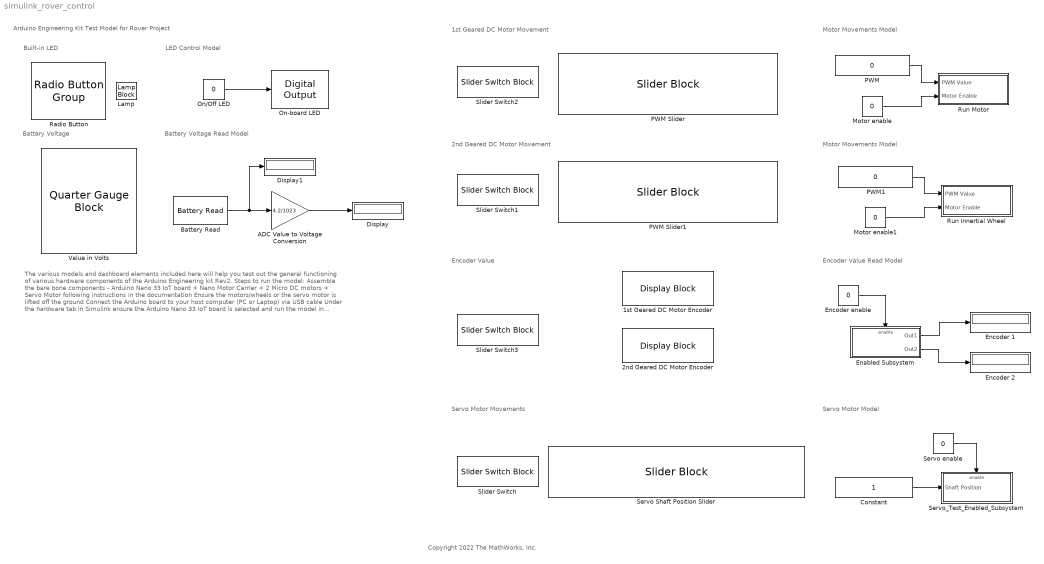
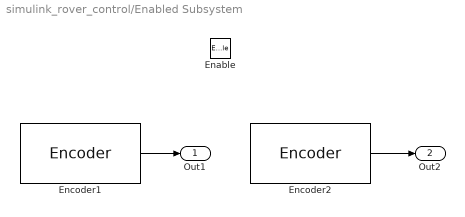
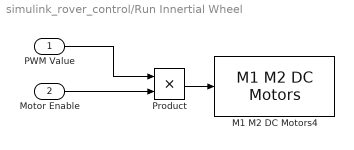
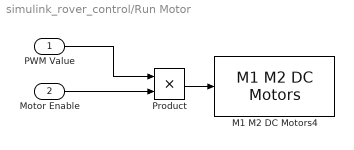
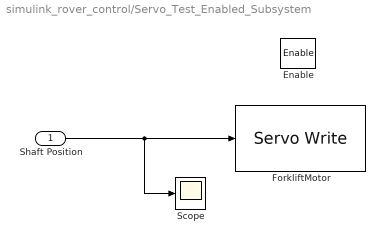
/*
 * Academic License - for use in teaching, academic research, and meeting
 * course requirements at degree granting institutions only.  Not for
 * government, commercial, or other organizational use.
 *
 * File: simulink_rover_control.c
 *
 * Code generated for Simulink model 'simulink_rover_control'.
 *
 * Model version                  : 1.29
 * Simulink Coder version         : 9.8 (R2022b) 13-May-2022
 * C/C++ source code generated on : Sat Feb 25 16:40:47 2023
 *
 * Target selection: ert.tlc
 * Embedded hardware selection: ARM Compatible->ARM Cortex
 * Code generation objectives: Unspecified
 * Validation result: Not run
 */

#include "simulink_rover_control.h"
#include "simulink_rover_control_types.h"
#include "rtwtypes.h"
#include <string.h>
#include "simulink_rover_control_private.h"
#include <stddef.h>
#include <math.h>

/* Block signals (default storage) */
B_simulink_rover_control_T simulink_rover_control_B;

/* Block states (default storage) */
DW_simulink_rover_control_T simulink_rover_control_DW;

/* Real-time model */
static RT_MODEL_simulink_rover_contr_T simulink_rover_control_M_;
RT_MODEL_simulink_rover_contr_T *const simulink_rover_control_M =
  &simulink_rover_control_M_;

/* Forward declaration for local functions */
static void mkrmotorcarrier_ServoMotor_Serv(const
  motorcarrier_blocks_mkrmo_hvv_T *obj, int32_T value);
static void simulink__SystemCore_setup_hvv2(motorcarrier_blocks_mkrmo_hvv_T *obj);
static void simulink_rover_SystemCore_setup(motorcarrier_blocks_mkrmoto_h_T *obj);
static void simulink_rov_SystemCore_setup_h(motorcarrier_blocks_mkrmoto_h_T *obj);
static void simulink_r_SystemCore_setup_hvv(motorcarrier_blocks_mkrmot_hv_T *obj);
static void simulink_ro_SystemCore_setup_hv(motorcarrier_blocks_mkrmot_hv_T *obj);
void mul_wide_s32(int32_T in0, int32_T in1, uint32_T *ptrOutBitsHi, uint32_T
                  *ptrOutBitsLo)
{
  uint32_T absIn0;
  uint32_T absIn1;
  uint32_T in0Hi;
  uint32_T in0Lo;
  uint32_T in1Hi;
  uint32_T productHiLo;
  uint32_T productLoHi;
  absIn0 = in0 < 0 ? ~(uint32_T)in0 + 1U : (uint32_T)in0;
  absIn1 = in1 < 0 ? ~(uint32_T)in1 + 1U : (uint32_T)in1;
  in0Hi = absIn0 >> 16U;
  in0Lo = absIn0 & 65535U;
  in1Hi = absIn1 >> 16U;
  absIn0 = absIn1 & 65535U;
  productHiLo = in0Hi * absIn0;
  productLoHi = in0Lo * in1Hi;
  absIn0 *= in0Lo;
  absIn1 = 0U;
  in0Lo = (productLoHi << /*MW:OvBitwiseOk*/ 16U) + /*MW:OvCarryOk*/ absIn0;
  if (in0Lo < absIn0) {
    absIn1 = 1U;
  }

  absIn0 = in0Lo;
  in0Lo += /*MW:OvCarryOk*/ productHiLo << /*MW:OvBitwiseOk*/ 16U;
  if (in0Lo < absIn0) {
    absIn1++;
  }

  absIn0 = (((productLoHi >> 16U) + (productHiLo >> 16U)) + in0Hi * in1Hi) +
    absIn1;
  if ((in0 != 0) && ((in1 != 0) && ((in0 > 0) != (in1 > 0)))) {
    absIn0 = ~absIn0;
    in0Lo = ~in0Lo;
    in0Lo++;
    if (in0Lo == 0U) {
      absIn0++;
    }
  }

  *ptrOutBitsHi = absIn0;
  *ptrOutBitsLo = in0Lo;
}

int32_T mul_s32_sat(int32_T a, int32_T b)
{
  int32_T result;
  uint32_T u32_chi;
  uint32_T u32_clo;
  mul_wide_s32(a, b, &u32_chi, &u32_clo);
  if (((int32_T)u32_chi > 0) || ((u32_chi == 0U) && (u32_clo >= 2147483648U))) {
    result = MAX_int32_T;
  } else if (((int32_T)u32_chi < -1) || (((int32_T)u32_chi == -1) && (u32_clo <
               2147483648U))) {
    result = MIN_int32_T;
  } else {
    result = (int32_T)u32_clo;
  }

  return result;
}

real_T rt_roundd_snf(real_T u)
{
  real_T y;
  if (fabs(u) < 4.503599627370496E+15) {
    if (u >= 0.5) {
      y = floor(u + 0.5);
    } else if (u > -0.5) {
      y = u * 0.0;
    } else {
      y = ceil(u - 0.5);
    }
  } else {
    y = u;
  }

  return y;
}

static void mkrmotorcarrier_ServoMotor_Serv(const
  motorcarrier_blocks_mkrmo_hvv_T *obj, int32_T value)
{
  int32_T x;
  int32_T z;
  uint32_T q;
  uint32_T y;
  uint8_T SwappedDataBytes[6];
  uint8_T data_uint8[4];
  x = mul_s32_sat(value, 21);
  if (x >= 0) {
    y = (uint32_T)x;
  } else if (x == MIN_int32_T) {
    y = 2147483648U;
  } else {
    y = (uint32_T)-x;
  }

  q = y / 180U;
  y -= q * 180U;
  if ((y > 0U) && (y >= 90U)) {
    q++;
  }

  z = (int32_T)q;
  if (x < 0) {
    z = -(int32_T)q;
  }

  x = z + 7;
  memcpy((void *)&data_uint8[0], (void *)&x, (size_t)4 * sizeof(uint8_T));
  simulink_rover_control_B.final_data_to_write_m[0] = 3U;
  simulink_rover_control_B.final_data_to_write_m[1] = 2U;
  simulink_rover_control_B.final_data_to_write_m[2] = data_uint8[0];
  simulink_rover_control_B.final_data_to_write_m[3] = data_uint8[1];
  simulink_rover_control_B.final_data_to_write_m[4] = data_uint8[2];
  simulink_rover_control_B.final_data_to_write_m[5] = data_uint8[3];
  memcpy((void *)&SwappedDataBytes[0], (void *)
         &simulink_rover_control_B.final_data_to_write_m[0], (size_t)6 * sizeof
         (uint8_T));
  MW_I2C_MasterWrite(obj->i2cObj.I2CDriverObj.MW_I2C_HANDLE, 102U,
                     &SwappedDataBytes[0], 6U, false, false);
}

static void simulink__SystemCore_setup_hvv2(motorcarrier_blocks_mkrmo_hvv_T *obj)
{
  MW_I2C_Mode_Type modename;
  uint32_T i2cname;
  f_codertarget_arduinobase_int_T *obj_0;
  int32_T x;
  uint32_T varargin_1;
  uint8_T SwappedDataBytes[6];
  uint8_T final_data_to_write[6];
  uint8_T data_uint8[4];
  obj->isSetupComplete = false;
  obj->isInitialized = 1;
  obj_0 = &obj->i2cObj;
  modename = MW_I2C_MASTER;
  i2cname = 0;
  obj->i2cObj.I2CDriverObj.MW_I2C_HANDLE = MW_I2C_Open(i2cname, modename);
  obj->i2cObj.BusSpeed = 100000U;
  varargin_1 = obj->i2cObj.BusSpeed;
  MW_I2C_SetBusSpeed(obj_0->I2CDriverObj.MW_I2C_HANDLE, varargin_1);
  x = 100;
  memcpy((void *)&data_uint8[0], (void *)&x, (size_t)4 * sizeof(uint8_T));
  final_data_to_write[0] = 4U;
  final_data_to_write[1] = 2U;
  final_data_to_write[2] = data_uint8[0];
  final_data_to_write[3] = data_uint8[1];
  final_data_to_write[4] = data_uint8[2];
  final_data_to_write[5] = data_uint8[3];
  memcpy((void *)&SwappedDataBytes[0], (void *)&final_data_to_write[0], (size_t)
         6 * sizeof(uint8_T));
  MW_I2C_MasterWrite(obj->i2cObj.I2CDriverObj.MW_I2C_HANDLE, 102U,
                     &SwappedDataBytes[0], 6U, false, false);
  obj->isSetupComplete = true;
}

static void simulink_rover_SystemCore_setup(motorcarrier_blocks_mkrmoto_h_T *obj)
{
  MW_I2C_Mode_Type modename;
  uint32_T i2cname;
  f_codertarget_arduinobase_int_T *obj_0;
  int32_T x;
  uint32_T varargin_1;
  uint8_T SwappedDataBytes[6];
  uint8_T final_data_to_write[6];
  uint8_T data_uint8[4];
  obj->isSetupComplete = false;
  obj->isInitialized = 1;
  obj_0 = &obj->i2cObj;
  modename = MW_I2C_MASTER;
  i2cname = 0;
  obj->i2cObj.I2CDriverObj.MW_I2C_HANDLE = MW_I2C_Open(i2cname, modename);
  obj->i2cObj.BusSpeed = 100000U;
  varargin_1 = obj->i2cObj.BusSpeed;
  MW_I2C_SetBusSpeed(obj_0->I2CDriverObj.MW_I2C_HANDLE, varargin_1);
  x = 0;
  memcpy((void *)&data_uint8[0], (void *)&x, (size_t)4 * sizeof(uint8_T));
  final_data_to_write[0] = 8U;
  final_data_to_write[1] = 0U;
  final_data_to_write[2] = data_uint8[0];
  final_data_to_write[3] = data_uint8[1];
  final_data_to_write[4] = data_uint8[2];
  final_data_to_write[5] = data_uint8[3];
  memcpy((void *)&SwappedDataBytes[0], (void *)&final_data_to_write[0], (size_t)
         6 * sizeof(uint8_T));
  MW_I2C_MasterWrite(obj->i2cObj.I2CDriverObj.MW_I2C_HANDLE, 102U,
                     &SwappedDataBytes[0], 6U, false, false);
  obj->isSetupComplete = true;
}

static void simulink_rov_SystemCore_setup_h(motorcarrier_blocks_mkrmoto_h_T *obj)
{
  MW_I2C_Mode_Type modename;
  uint32_T i2cname;
  f_codertarget_arduinobase_int_T *obj_0;
  int32_T x;
  uint32_T varargin_1;
  uint8_T SwappedDataBytes[6];
  uint8_T final_data_to_write[6];
  uint8_T data_uint8[4];
  obj->isSetupComplete = false;
  obj->isInitialized = 1;
  obj_0 = &obj->i2cObj;
  modename = MW_I2C_MASTER;
  i2cname = 0;
  obj->i2cObj.I2CDriverObj.MW_I2C_HANDLE = MW_I2C_Open(i2cname, modename);
  obj->i2cObj.BusSpeed = 100000U;
  varargin_1 = obj->i2cObj.BusSpeed;
  MW_I2C_SetBusSpeed(obj_0->I2CDriverObj.MW_I2C_HANDLE, varargin_1);
  x = 0;
  memcpy((void *)&data_uint8[0], (void *)&x, (size_t)4 * sizeof(uint8_T));
  final_data_to_write[0] = 8U;
  final_data_to_write[1] = 1U;
  final_data_to_write[2] = data_uint8[0];
  final_data_to_write[3] = data_uint8[1];
  final_data_to_write[4] = data_uint8[2];
  final_data_to_write[5] = data_uint8[3];
  memcpy((void *)&SwappedDataBytes[0], (void *)&final_data_to_write[0], (size_t)
         6 * sizeof(uint8_T));
  MW_I2C_MasterWrite(obj->i2cObj.I2CDriverObj.MW_I2C_HANDLE, 102U,
                     &SwappedDataBytes[0], 6U, false, false);
  obj->isSetupComplete = true;
}

static void simulink_r_SystemCore_setup_hvv(motorcarrier_blocks_mkrmot_hv_T *obj)
{
  MW_I2C_Mode_Type modename;
  uint32_T i2cname;
  f_codertarget_arduinobase_int_T *obj_0;
  int32_T x;
  uint32_T varargin_1;
  uint8_T SwappedDataBytes[6];
  uint8_T final_data_to_write[6];
  uint8_T data_uint8[4];
  obj->isSetupComplete = false;
  obj->isInitialized = 1;
  obj_0 = &obj->i2cObj;
  modename = MW_I2C_MASTER;
  i2cname = 0;
  obj->i2cObj.I2CDriverObj.MW_I2C_HANDLE = MW_I2C_Open(i2cname, modename);
  obj->i2cObj.BusSpeed = 100000U;
  varargin_1 = obj->i2cObj.BusSpeed;
  MW_I2C_SetBusSpeed(obj_0->I2CDriverObj.MW_I2C_HANDLE, varargin_1);
  x = 100;
  memcpy((void *)&data_uint8[0], (void *)&x, (size_t)4 * sizeof(uint8_T));
  final_data_to_write[0] = 6U;
  final_data_to_write[1] = 0U;
  final_data_to_write[2] = data_uint8[0];
  final_data_to_write[3] = data_uint8[1];
  final_data_to_write[4] = data_uint8[2];
  final_data_to_write[5] = data_uint8[3];
  memcpy((void *)&SwappedDataBytes[0], (void *)&final_data_to_write[0], (size_t)
         6 * sizeof(uint8_T));
  MW_I2C_MasterWrite(obj->i2cObj.I2CDriverObj.MW_I2C_HANDLE, 102U,
                     &SwappedDataBytes[0], 6U, false, false);
  obj->isSetupComplete = true;
}

static void simulink_ro_SystemCore_setup_hv(motorcarrier_blocks_mkrmot_hv_T *obj)
{
  MW_I2C_Mode_Type modename;
  uint32_T i2cname;
  f_codertarget_arduinobase_int_T *obj_0;
  int32_T x;
  uint32_T varargin_1;
  uint8_T SwappedDataBytes[6];
  uint8_T final_data_to_write[6];
  uint8_T data_uint8[4];
  obj->isSetupComplete = false;
  obj->isInitialized = 1;
  obj_0 = &obj->i2cObj;
  modename = MW_I2C_MASTER;
  i2cname = 0;
  obj->i2cObj.I2CDriverObj.MW_I2C_HANDLE = MW_I2C_Open(i2cname, modename);
  obj->i2cObj.BusSpeed = 100000U;
  varargin_1 = obj->i2cObj.BusSpeed;
  MW_I2C_SetBusSpeed(obj_0->I2CDriverObj.MW_I2C_HANDLE, varargin_1);
  x = 100;
  memcpy((void *)&data_uint8[0], (void *)&x, (size_t)4 * sizeof(uint8_T));
  final_data_to_write[0] = 6U;
  final_data_to_write[1] = 1U;
  final_data_to_write[2] = data_uint8[0];
  final_data_to_write[3] = data_uint8[1];
  final_data_to_write[4] = data_uint8[2];
  final_data_to_write[5] = data_uint8[3];
  memcpy((void *)&SwappedDataBytes[0], (void *)&final_data_to_write[0], (size_t)
         6 * sizeof(uint8_T));
  MW_I2C_MasterWrite(obj->i2cObj.I2CDriverObj.MW_I2C_HANDLE, 102U,
                     &SwappedDataBytes[0], 6U, false, false);
  obj->isSetupComplete = true;
}

/* Model step function */
void simulink_rover_control_step(void)
{
  f_codertarget_arduinobase_int_T *obj;
  int32_T In;
  uint32_T out;
  uint8_T out_raw[5];
  uint8_T output_raw[5];
  uint8_T data_uint8[4];
  uint8_T SwappedDataBytes[2];
  uint8_T final_data_to_write[2];
  uint8_T tmp;

  /* Reset subsysRan breadcrumbs */
  srClearBC(simulink_rover_control_DW.EnabledSubsystem_SubsysRanBC);

  /* Reset subsysRan breadcrumbs */
  srClearBC(simulink_rover_control_DW.Servo_Test_Enabled_Subsystem_Su);

  /* MATLABSystem: '<Root>/Battery Read' */
  if (simulink_rover_control_DW.obj.SampleTime !=
      simulink_rover_control_P.BatteryRead_SampleTime) {
    simulink_rover_control_DW.obj.SampleTime =
      simulink_rover_control_P.BatteryRead_SampleTime;
  }

  obj = &simulink_rover_control_DW.obj.i2cObj;
  final_data_to_write[0] = 13U;
  final_data_to_write[1] = 0U;
  memcpy((void *)&SwappedDataBytes[0], (void *)&final_data_to_write[0], (size_t)
         2 * sizeof(uint8_T));
  MW_I2C_MasterWrite(obj->I2CDriverObj.MW_I2C_HANDLE, 102U, &SwappedDataBytes[0],
                     2U, false, false);
  obj = &simulink_rover_control_DW.obj.i2cObj;
  MW_I2C_MasterRead(obj->I2CDriverObj.MW_I2C_HANDLE, 102U, &output_raw[0], 5U,
                    false, false);
  memcpy((void *)&out_raw[0], (void *)&output_raw[0], (size_t)5 * sizeof(uint8_T));
  memcpy((void *)&out, (void *)&out_raw[1], (size_t)1 * sizeof(uint32_T));
  if (out > 65535U) {
    out = 65535U;
  }

  /* MATLABSystem: '<Root>/Battery Read' */
  simulink_rover_control_B.BatteryRead = (uint16_T)out;

  /* Gain: '<Root>/ADC Value to Voltage Conversion' */
  simulink_rover_control_B.ADCValuetoVoltageConversion = (uint32_T)
    simulink_rover_control_P.ADCValuetoVoltageConversion_Gai *
    simulink_rover_control_B.BatteryRead;

  /* Constant: '<Root>/Constant' */
  simulink_rover_control_B.Constant = simulink_rover_control_P.Constant_Value;

  /* Outputs for Enabled SubSystem: '<Root>/Servo_Test_Enabled_Subsystem' incorporates:
   *  EnablePort: '<S4>/Enable'
   */
  /* Constant: '<Root>/Servo enable' */
  if (simulink_rover_control_P.Servoenable_Value > 0.0) {
    /* MATLABSystem: '<S4>/ForkliftMotor' */
    simulink_rover_control_B.Product = rt_roundd_snf
      (simulink_rover_control_B.Constant);
    if (simulink_rover_control_B.Product < 2.147483648E+9) {
      if (simulink_rover_control_B.Product >= -2.147483648E+9) {
        In = (int32_T)simulink_rover_control_B.Product;
      } else {
        In = MIN_int32_T;
      }
    } else {
      In = MAX_int32_T;
    }

    mkrmotorcarrier_ServoMotor_Serv(&simulink_rover_control_DW.obj_f, In);

    /* End of MATLABSystem: '<S4>/ForkliftMotor' */
    srUpdateBC(simulink_rover_control_DW.Servo_Test_Enabled_Subsystem_Su);
  }

  /* End of Constant: '<Root>/Servo enable' */
  /* End of Outputs for SubSystem: '<Root>/Servo_Test_Enabled_Subsystem' */

  /* Outputs for Enabled SubSystem: '<Root>/Enabled Subsystem' incorporates:
   *  EnablePort: '<S1>/Enable'
   */
  /* Constant: '<Root>/Encoder enable' */
  if (simulink_rover_control_P.Encoderenable_Value > 0.0) {
    /* MATLABSystem: '<S1>/Encoder1' */
    final_data_to_write[0] = 7U;
    final_data_to_write[1] = 0U;
    obj = &simulink_rover_control_DW.obj_n.i2cObj;
    memcpy((void *)&SwappedDataBytes[0], (void *)&final_data_to_write[0],
           (size_t)2 * sizeof(uint8_T));
    MW_I2C_MasterWrite(obj->I2CDriverObj.MW_I2C_HANDLE, 102U, &SwappedDataBytes
                       [0], 2U, false, false);
    obj = &simulink_rover_control_DW.obj_n.i2cObj;
    MW_I2C_MasterRead(obj->I2CDriverObj.MW_I2C_HANDLE, 102U, &output_raw[0], 5U,
                      false, false);
    memcpy((void *)&out_raw[0], (void *)&output_raw[0], (size_t)5 * sizeof
           (uint8_T));
    memcpy((void *)&simulink_rover_control_B.Encoder1, (void *)&out_raw[1],
           (size_t)1 * sizeof(int32_T));

    /* MATLABSystem: '<S1>/Encoder2' */
    final_data_to_write[0] = 7U;
    final_data_to_write[1] = 1U;
    obj = &simulink_rover_control_DW.obj_l.i2cObj;
    memcpy((void *)&SwappedDataBytes[0], (void *)&final_data_to_write[0],
           (size_t)2 * sizeof(uint8_T));
    MW_I2C_MasterWrite(obj->I2CDriverObj.MW_I2C_HANDLE, 102U, &SwappedDataBytes
                       [0], 2U, false, false);
    obj = &simulink_rover_control_DW.obj_l.i2cObj;
    MW_I2C_MasterRead(obj->I2CDriverObj.MW_I2C_HANDLE, 102U, &output_raw[0], 5U,
                      false, false);
    memcpy((void *)&out_raw[0], (void *)&output_raw[0], (size_t)5 * sizeof
           (uint8_T));
    memcpy((void *)&simulink_rover_control_B.Encoder2, (void *)&out_raw[1],
           (size_t)1 * sizeof(int32_T));
    srUpdateBC(simulink_rover_control_DW.EnabledSubsystem_SubsysRanBC);
  }

  /* End of Constant: '<Root>/Encoder enable' */
  /* End of Outputs for SubSystem: '<Root>/Enabled Subsystem' */
  /* Outputs for Atomic SubSystem: '<Root>/Run Motor' */
  /* Product: '<S3>/Product' incorporates:
   *  Constant: '<Root>/Motor enable'
   *  Constant: '<Root>/PWM'
   */
  simulink_rover_control_B.Product = simulink_rover_control_P.PWM_Value *
    simulink_rover_control_P.Motorenable_Value;

  /* MATLABSystem: '<S3>/M1 M2 DC Motors4' */
  if (simulink_rover_control_B.Product > 100.0) {
    In = 100;
  } else if (simulink_rover_control_B.Product < -100.0) {
    In = -100;
  } else {
    simulink_rover_control_B.Product = rt_roundd_snf
      (simulink_rover_control_B.Product);
    if (simulink_rover_control_B.Product < 2.147483648E+9) {
      In = (int32_T)simulink_rover_control_B.Product;
    } else {
      In = MAX_int32_T;
    }
  }

  memcpy((void *)&data_uint8[0], (void *)&In, (size_t)4 * sizeof(uint8_T));
  simulink_rover_control_B.final_data_to_write[0] = 5U;
  simulink_rover_control_B.final_data_to_write[1] = 0U;
  simulink_rover_control_B.final_data_to_write[2] = data_uint8[0];
  simulink_rover_control_B.final_data_to_write[3] = data_uint8[1];
  simulink_rover_control_B.final_data_to_write[4] = data_uint8[2];
  simulink_rover_control_B.final_data_to_write[5] = data_uint8[3];
  obj = &simulink_rover_control_DW.obj_b.i2cObj;
  memcpy((void *)&simulink_rover_control_B.SwappedDataBytes[0], (void *)
         &simulink_rover_control_B.final_data_to_write[0], (size_t)6 * sizeof
         (uint8_T));
  MW_I2C_MasterWrite(obj->I2CDriverObj.MW_I2C_HANDLE, 102U,
                     &simulink_rover_control_B.SwappedDataBytes[0], 6U, false,
                     false);

  /* End of MATLABSystem: '<S3>/M1 M2 DC Motors4' */
  /* End of Outputs for SubSystem: '<Root>/Run Motor' */

  /* Outputs for Atomic SubSystem: '<Root>/Run Innertial Wheel' */
  /* Product: '<S2>/Product' incorporates:
   *  Constant: '<Root>/Motor enable1'
   *  Constant: '<Root>/PWM1'
   */
  simulink_rover_control_B.Product = simulink_rover_control_P.PWM1_Value *
    simulink_rover_control_P.Motorenable1_Value;

  /* MATLABSystem: '<S2>/M1 M2 DC Motors4' */
  if (simulink_rover_control_B.Product > 100.0) {
    In = 100;
  } else if (simulink_rover_control_B.Product < -100.0) {
    In = -100;
  } else {
    simulink_rover_control_B.Product = rt_roundd_snf
      (simulink_rover_control_B.Product);
    if (simulink_rover_control_B.Product < 2.147483648E+9) {
      In = (int32_T)simulink_rover_control_B.Product;
    } else {
      In = MAX_int32_T;
    }
  }

  memcpy((void *)&data_uint8[0], (void *)&In, (size_t)4 * sizeof(uint8_T));
  simulink_rover_control_B.final_data_to_write[0] = 5U;
  simulink_rover_control_B.final_data_to_write[1] = 1U;
  simulink_rover_control_B.final_data_to_write[2] = data_uint8[0];
  simulink_rover_control_B.final_data_to_write[3] = data_uint8[1];
  simulink_rover_control_B.final_data_to_write[4] = data_uint8[2];
  simulink_rover_control_B.final_data_to_write[5] = data_uint8[3];
  obj = &simulink_rover_control_DW.obj_p.i2cObj;
  memcpy((void *)&simulink_rover_control_B.SwappedDataBytes[0], (void *)
         &simulink_rover_control_B.final_data_to_write[0], (size_t)6 * sizeof
         (uint8_T));
  MW_I2C_MasterWrite(obj->I2CDriverObj.MW_I2C_HANDLE, 102U,
                     &simulink_rover_control_B.SwappedDataBytes[0], 6U, false,
                     false);

  /* End of MATLABSystem: '<S2>/M1 M2 DC Motors4' */
  /* End of Outputs for SubSystem: '<Root>/Run Innertial Wheel' */

  /* Constant: '<Root>/On//Off LED' */
  simulink_rover_control_B.OnOffLED = simulink_rover_control_P.OnOffLED_Value;

  /* MATLABSystem: '<Root>/On-board LED' */
  simulink_rover_control_B.Product = rt_roundd_snf
    (simulink_rover_control_B.OnOffLED);
  if (simulink_rover_control_B.Product < 256.0) {
    if (simulink_rover_control_B.Product >= 0.0) {
      tmp = (uint8_T)simulink_rover_control_B.Product;
    } else {
      tmp = 0U;
    }
  } else {
    tmp = MAX_uint8_T;
  }

  writeDigitalPin(13, tmp);

  /* End of MATLABSystem: '<Root>/On-board LED' */
  {                                    /* Sample time: [0.1s, 0.0s] */
  }

  /* Update absolute time for base rate */
  /* The "clockTick0" counts the number of times the code of this task has
   * been executed. The absolute time is the multiplication of "clockTick0"
   * and "Timing.stepSize0". Size of "clockTick0" ensures timer will not
   * overflow during the application lifespan selected.
   */
  simulink_rover_control_M->Timing.taskTime0 =
    ((time_T)(++simulink_rover_control_M->Timing.clockTick0)) *
    simulink_rover_control_M->Timing.stepSize0;
}
